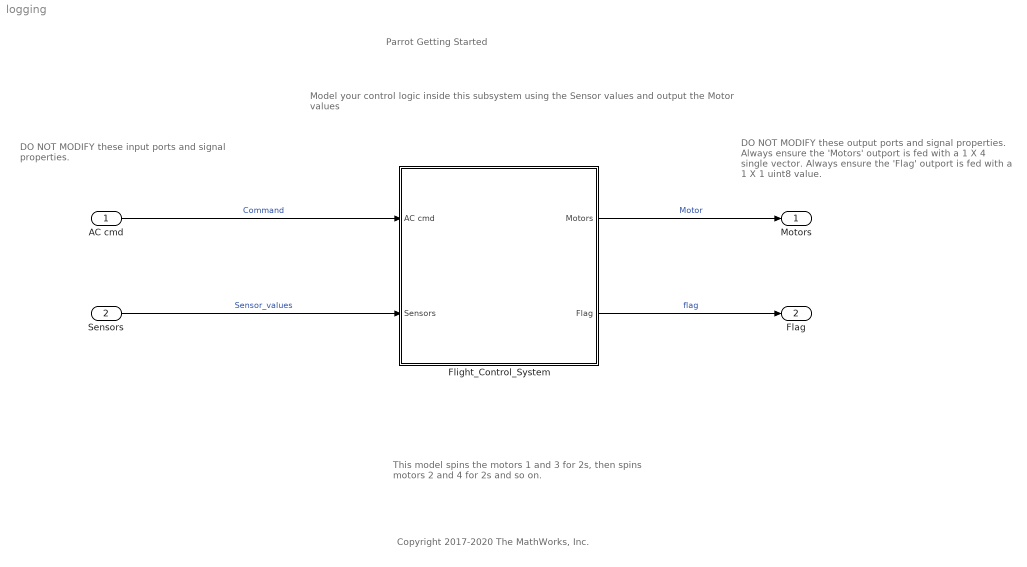
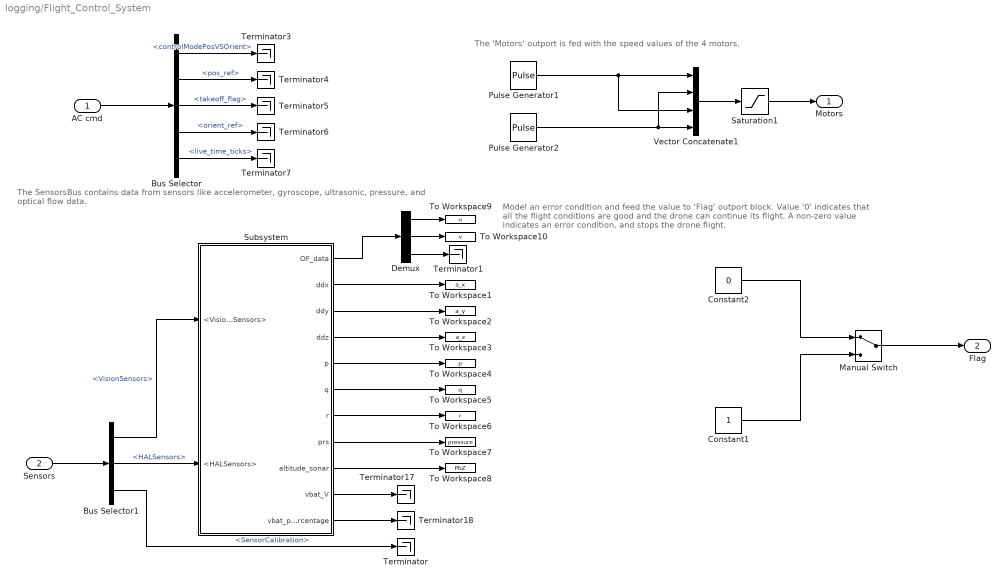
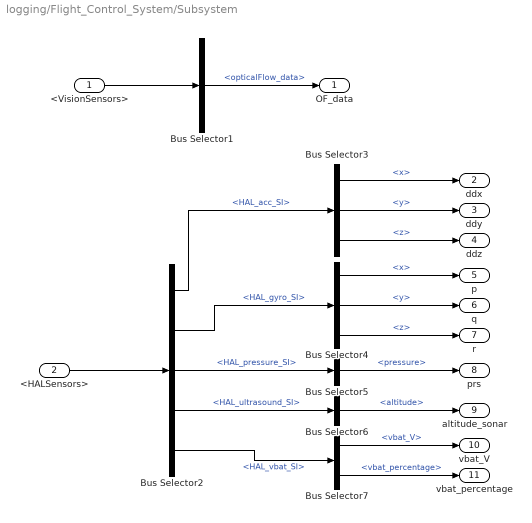
/*
 * logging.c
 *
 * Academic License - for use in teaching, academic research, and meeting
 * course requirements at degree granting institutions only.  Not for
 * government, commercial, or other organizational use.
 *
 * Code generation for model "logging".
 *
 * Model version              : 2.2
 * Simulink Coder version : 9.5 (R2021a) 14-Nov-2020
 * C source code generated on : Wed May  4 09:20:27 2022
 *
 * Target selection: ert.tlc
 * Note: GRT includes extra infrastructure and instrumentation for prototyping
 * Embedded hardware selection: ARM Compatible->ARM 9
 * Code generation objectives: Unspecified
 * Validation result: Not run
 */

#include "logging.h"
#include "logging_private.h"

/* Exported block signals */
CommandBus cmd_inport;                 /* '<Root>/AC cmd' */
SensorsBus sensor_inport;              /* '<Root>/Sensors' */
real32_T motors_outport[4];            /* '<S1>/Saturation1' */
uint8_T flag_outport;                  /* '<S1>/Manual Switch' */

/* Block states (default storage) */
DW_logging_T logging_DW;

/* External outputs (root outports fed by signals with default storage) */
ExtY_logging_T logging_Y;

/* Real-time model */
static RT_MODEL_logging_T logging_M_;
RT_MODEL_logging_T *const logging_M = &logging_M_;

/* Model step function */
void logging_step(void)
{
  real_T rtb_PulseGenerator1;
  real_T rtb_PulseGenerator2;
  real32_T rtb_opticalFlow_data[3];
  real32_T rtb_altitude;

  /* DiscretePulseGenerator: '<S1>/Pulse Generator1' */
  rtb_PulseGenerator1 = (logging_DW.clockTickCounter <
    logging_P.PulseGenerator1_Duty) && (logging_DW.clockTickCounter >= 0) ?
    logging_P.PulseGenerator1_Amp : 0.0;
  if (logging_DW.clockTickCounter >= logging_P.PulseGenerator1_Period - 1.0) {
    logging_DW.clockTickCounter = 0;
  } else {
    logging_DW.clockTickCounter++;
  }

  /* End of DiscretePulseGenerator: '<S1>/Pulse Generator1' */

  /* DiscretePulseGenerator: '<S1>/Pulse Generator2' */
  rtb_PulseGenerator2 = (logging_DW.clockTickCounter_n <
    logging_P.PulseGenerator2_Duty) && (logging_DW.clockTickCounter_n >= 0) ?
    logging_P.PulseGenerator2_Amp : 0.0;
  if (logging_DW.clockTickCounter_n >= logging_P.PulseGenerator2_Period - 1.0) {
    logging_DW.clockTickCounter_n = 0;
  } else {
    logging_DW.clockTickCounter_n++;
  }

  /* End of DiscretePulseGenerator: '<S1>/Pulse Generator2' */

  /* Saturate: '<S1>/Saturation1' incorporates:
   *  SignalConversion generated from: '<S1>/Vector Concatenate1'
   */
  if (rtb_PulseGenerator1 > logging_P.Saturation1_UpperSat) {
    /* Saturate: '<S1>/Saturation1' */
    motors_outport[0] = logging_P.Saturation1_UpperSat;
  } else if (rtb_PulseGenerator1 < logging_P.Saturation1_LowerSat) {
    /* Saturate: '<S1>/Saturation1' */
    motors_outport[0] = logging_P.Saturation1_LowerSat;
  } else {
    /* Saturate: '<S1>/Saturation1' */
    motors_outport[0] = (real32_T)rtb_PulseGenerator1;
  }

  /* Outport: '<Root>/Motors' incorporates:
   *  Saturate: '<S1>/Saturation1'
   */
  logging_Y.Motors[0] = motors_outport[0];

  /* Saturate: '<S1>/Saturation1' incorporates:
   *  SignalConversion generated from: '<S1>/Vector Concatenate1'
   */
  if (rtb_PulseGenerator2 > logging_P.Saturation1_UpperSat) {
    /* Saturate: '<S1>/Saturation1' */
    motors_outport[1] = logging_P.Saturation1_UpperSat;
  } else if (rtb_PulseGenerator2 < logging_P.Saturation1_LowerSat) {
    /* Saturate: '<S1>/Saturation1' */
    motors_outport[1] = logging_P.Saturation1_LowerSat;
  } else {
    /* Saturate: '<S1>/Saturation1' */
    motors_outport[1] = (real32_T)rtb_PulseGenerator2;
  }

  /* Outport: '<Root>/Motors' incorporates:
   *  Saturate: '<S1>/Saturation1'
   */
  logging_Y.Motors[1] = motors_outport[1];

  /* Saturate: '<S1>/Saturation1' incorporates:
   *  SignalConversion generated from: '<S1>/Vector Concatenate1'
   */
  if (rtb_PulseGenerator1 > logging_P.Saturation1_UpperSat) {
    /* Saturate: '<S1>/Saturation1' */
    motors_outport[2] = logging_P.Saturation1_UpperSat;
  } else if (rtb_PulseGenerator1 < logging_P.Saturation1_LowerSat) {
    /* Saturate: '<S1>/Saturation1' */
    motors_outport[2] = logging_P.Saturation1_LowerSat;
  } else {
    /* Saturate: '<S1>/Saturation1' */
    motors_outport[2] = (real32_T)rtb_PulseGenerator1;
  }

  /* Outport: '<Root>/Motors' incorporates:
   *  Saturate: '<S1>/Saturation1'
   */
  logging_Y.Motors[2] = motors_outport[2];

  /* Saturate: '<S1>/Saturation1' incorporates:
   *  SignalConversion generated from: '<S1>/Vector Concatenate1'
   */
  if (rtb_PulseGenerator2 > logging_P.Saturation1_UpperSat) {
    /* Saturate: '<S1>/Saturation1' */
    motors_outport[3] = logging_P.Saturation1_UpperSat;
  } else if (rtb_PulseGenerator2 < logging_P.Saturation1_LowerSat) {
    /* Saturate: '<S1>/Saturation1' */
    motors_outport[3] = logging_P.Saturation1_LowerSat;
  } else {
    /* Saturate: '<S1>/Saturation1' */
    motors_outport[3] = (real32_T)rtb_PulseGenerator2;
  }

  /* Outport: '<Root>/Motors' incorporates:
   *  Saturate: '<S1>/Saturation1'
   */
  logging_Y.Motors[3] = motors_outport[3];

  /* ManualSwitch: '<S1>/Manual Switch' */
  if (logging_P.ManualSwitch_CurrentSetting == 1) {
    /* ManualSwitch: '<S1>/Manual Switch' incorporates:
     *  Constant: '<S1>/Constant2'
     */
    flag_outport = logging_P.Constant2_Value;
  } else {
    /* ManualSwitch: '<S1>/Manual Switch' incorporates:
     *  Constant: '<S1>/Constant1'
     */
    flag_outport = logging_P.Constant1_Value;
  }

  /* End of ManualSwitch: '<S1>/Manual Switch' */

  /* Outport: '<Root>/Flag' */
  logging_Y.Flag = flag_outport;

  /* SignalConversion generated from: '<S2>/Bus Selector3' incorporates:
   *  Inport: '<Root>/Sensors'
   */
  rtb_altitude = sensor_inport.HALSensors.HAL_acc_SI.x;

  /* ToWorkspace: '<S1>/To Workspace1' */
  {
    double locTime = logging_M->Timing.taskTime0;
    ;
    rt_UpdateStructLogVar((StructLogVar *)
                          logging_DW.ToWorkspace1_PWORK.LoggedData, &locTime,
                          &rtb_altitude);
  }

  /* SignalConversion generated from: '<S2>/Bus Selector1' incorporates:
   *  Inport: '<Root>/Sensors'
   */
  rtb_opticalFlow_data[0] = sensor_inport.VisionSensors.opticalFlow_data[0];
  rtb_opticalFlow_data[1] = sensor_inport.VisionSensors.opticalFlow_data[1];
  rtb_opticalFlow_data[2] = sensor_inport.VisionSensors.opticalFlow_data[2];

  /* ToWorkspace: '<S1>/To Workspace10' */
  {
    double locTime = logging_M->Timing.taskTime0;
    ;
    rt_UpdateStructLogVar((StructLogVar *)
                          logging_DW.ToWorkspace10_PWORK.LoggedData, &locTime,
                          &rtb_opticalFlow_data[1]);
  }

  /* SignalConversion generated from: '<S2>/Bus Selector3' incorporates:
   *  Inport: '<Root>/Sensors'
   */
  rtb_altitude = sensor_inport.HALSensors.HAL_acc_SI.y;

  /* ToWorkspace: '<S1>/To Workspace2' */
  {
    double locTime = logging_M->Timing.taskTime0;
    ;
    rt_UpdateStructLogVar((StructLogVar *)
                          logging_DW.ToWorkspace2_PWORK.LoggedData, &locTime,
                          &rtb_altitude);
  }

  /* SignalConversion generated from: '<S2>/Bus Selector3' incorporates:
   *  Inport: '<Root>/Sensors'
   */
  rtb_altitude = sensor_inport.HALSensors.HAL_acc_SI.z;

  /* ToWorkspace: '<S1>/To Workspace3' */
  {
    double locTime = logging_M->Timing.taskTime0;
    ;
    rt_UpdateStructLogVar((StructLogVar *)
                          logging_DW.ToWorkspace3_PWORK.LoggedData, &locTime,
                          &rtb_altitude);
  }

  /* SignalConversion generated from: '<S2>/Bus Selector4' incorporates:
   *  Inport: '<Root>/Sensors'
   */
  rtb_altitude = sensor_inport.HALSensors.HAL_gyro_SI.x;

  /* ToWorkspace: '<S1>/To Workspace4' */
  {
    double locTime = logging_M->Timing.taskTime0;
    ;
    rt_UpdateStructLogVar((StructLogVar *)
                          logging_DW.ToWorkspace4_PWORK.LoggedData, &locTime,
                          &rtb_altitude);
  }

  /* SignalConversion generated from: '<S2>/Bus Selector4' incorporates:
   *  Inport: '<Root>/Sensors'
   */
  rtb_altitude = sensor_inport.HALSensors.HAL_gyro_SI.y;

  /* ToWorkspace: '<S1>/To Workspace5' */
  {
    double locTime = logging_M->Timing.taskTime0;
    ;
    rt_UpdateStructLogVar((StructLogVar *)
                          logging_DW.ToWorkspace5_PWORK.LoggedData, &locTime,
                          &rtb_altitude);
  }

  /* SignalConversion generated from: '<S2>/Bus Selector4' incorporates:
   *  Inport: '<Root>/Sensors'
   */
  rtb_altitude = sensor_inport.HALSensors.HAL_gyro_SI.z;

  /* ToWorkspace: '<S1>/To Workspace6' */
  {
    double locTime = logging_M->Timing.taskTime0;
    ;
    rt_UpdateStructLogVar((StructLogVar *)
                          logging_DW.ToWorkspace6_PWORK.LoggedData, &locTime,
                          &rtb_altitude);
  }

  /* SignalConversion generated from: '<S2>/Bus Selector5' incorporates:
   *  Inport: '<Root>/Sensors'
   */
  rtb_altitude = sensor_inport.HALSensors.HAL_pressure_SI.pressure;

  /* ToWorkspace: '<S1>/To Workspace7' */
  {
    double locTime = logging_M->Timing.taskTime0;
    ;
    rt_UpdateStructLogVar((StructLogVar *)
                          logging_DW.ToWorkspace7_PWORK.LoggedData, &locTime,
                          &rtb_altitude);
  }

  /* SignalConversion generated from: '<S2>/Bus Selector6' incorporates:
   *  Inport: '<Root>/Sensors'
   */
  rtb_altitude = sensor_inport.HALSensors.HAL_ultrasound_SI.altitude;

  /* ToWorkspace: '<S1>/To Workspace8' */
  {
    double locTime = logging_M->Timing.taskTime0;
    ;
    rt_UpdateStructLogVar((StructLogVar *)
                          logging_DW.ToWorkspace8_PWORK.LoggedData, &locTime,
                          &rtb_altitude);
  }

  /* ToWorkspace: '<S1>/To Workspace9' */
  {
    double locTime = logging_M->Timing.taskTime0;
    ;
    rt_UpdateStructLogVar((StructLogVar *)
                          logging_DW.ToWorkspace9_PWORK.LoggedData, &locTime,
                          &rtb_opticalFlow_data[0]);
  }

  /* Matfile logging */
  rt_UpdateTXYLogVars(logging_M->rtwLogInfo, (&logging_M->Timing.taskTime0));

  /* signal main to stop simulation */
  {                                    /* Sample time: [0.005s, 0.0s] */
    if ((rtmGetTFinal(logging_M)!=-1) &&
        !((rtmGetTFinal(logging_M)-logging_M->Timing.taskTime0) >
          logging_M->Timing.taskTime0 * (DBL_EPSILON))) {
      rtmSetErrorStatus(logging_M, "Simulation finished");
    }
  }

  /* Update absolute time for base rate */
  /* The "clockTick0" counts the number of times the code of this task has
   * been executed. The absolute time is the multiplication of "clockTick0"
   * and "Timing.stepSize0". Size of "clockTick0" ensures timer will not
   * overflow during the application lifespan selected.
   * Timer of this task consists of two 32 bit unsigned integers.
   * The two integers represent the low bits Timing.clockTick0 and the high bits
   * Timing.clockTickH0. When the low bit overflows to 0, the high bits increment.
   */
  if (!(++logging_M->Timing.clockTick0)) {
    ++logging_M->Timing.clockTickH0;
  }

  logging_M->Timing.taskTime0 = logging_M->Timing.clockTick0 *
    logging_M->Timing.stepSize0 + logging_M->Timing.clockTickH0 *
    logging_M->Timing.stepSize0 * 4294967296.0;
}
